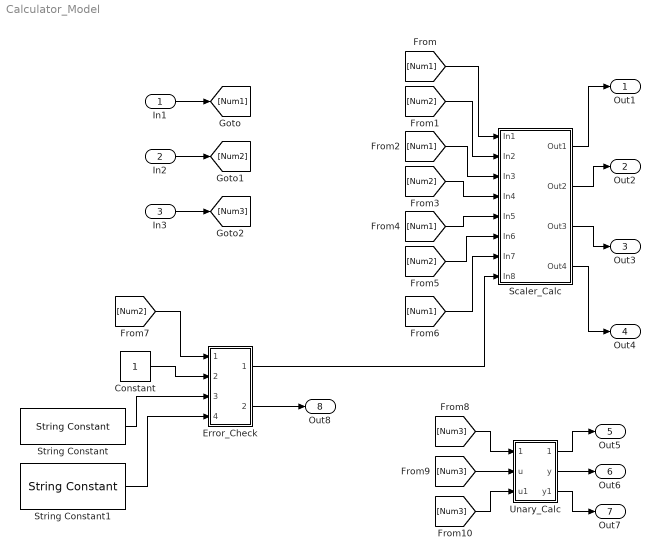
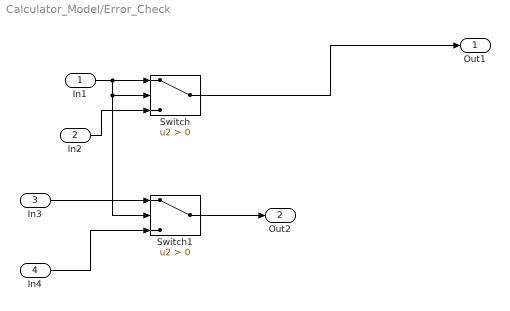
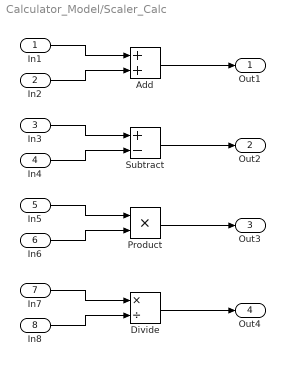
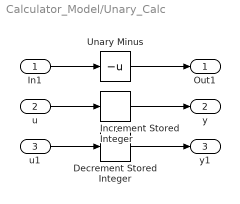
/*
 * File: Calculator_Model.c
 *
 * Code generated for Simulink model 'Calculator_Model'.
 *
 * Model version                  : 1.5
 * Simulink Coder version         : 9.5 (R2021a) 14-Nov-2020
 * C/C++ source code generated on : Tue Jan 23 13:40:56 2024
 *
 * Target selection: ert.tlc
 * Embedded hardware selection: Intel->x86-64 (Windows64)
 * Code generation objectives:
 *    1. RAM efficiency
 *    2. Execution efficiency
 * Validation result: Not run
 */

#include "Calculator_Model.h"
#include "Calculator_Model_private.h"

/* Model step function */
void Calculator_Model_step(RT_MODEL_Calculator_Model_T *const Calculator_Model_M,
  real_T Calculator_Model_U_In1, real_T Calculator_Model_U_In2, real_T
  Calculator_Model_U_In3, real_T *Calculator_Model_Y_Add_Out, real_T
  *Calculator_Model_Y_Sub_Out, real_T *Calculator_Model_Y_Prod_Out, real_T
  *Calculator_Model_Y_Div_Out, real_T *Calculator_Model_Y_UMinus_Out, real_T
  *Calculator_Model_Y_Incr_Out, real_T *Calculator_Model_Y_Decr_Out, char_T
  Calculator_Model_Y_Error_Out[256])
{
  real_T tmp;

  /* Outputs for Atomic SubSystem: '<Root>/Error_Check' */
  /* Switch: '<S1>/Switch1' incorporates:
   *  Inport: '<Root>/In2'
   *  Outport: '<Root>/Out8'
   */
  if (Calculator_Model_U_In2 > 0.0) {
    strncpy(&Calculator_Model_Y_Error_Out[0],
            &Calculator_Model_ConstB.StringConstant[0], 255U);
    Calculator_Model_Y_Error_Out[255] = '\x00';
  } else {
    strncpy(&Calculator_Model_Y_Error_Out[0],
            &Calculator_Model_ConstB.StringConstant1[0], 255U);
    Calculator_Model_Y_Error_Out[255] = '\x00';
  }

  /* End of Switch: '<S1>/Switch1' */
  /* End of Outputs for SubSystem: '<Root>/Error_Check' */

  /* Outputs for Atomic SubSystem: '<Root>/Scaler_Calc' */
  /* Outport: '<Root>/Out1' incorporates:
   *  Inport: '<Root>/In1'
   *  Inport: '<Root>/In2'
   *  Sum: '<S2>/Add'
   */
  *Calculator_Model_Y_Add_Out = Calculator_Model_U_In1 + Calculator_Model_U_In2;

  /* Outport: '<Root>/Out2' incorporates:
   *  Inport: '<Root>/In1'
   *  Inport: '<Root>/In2'
   *  Sum: '<S2>/Subtract'
   */
  *Calculator_Model_Y_Sub_Out = Calculator_Model_U_In1 - Calculator_Model_U_In2;

  /* Outport: '<Root>/Out3' incorporates:
   *  Inport: '<Root>/In1'
   *  Inport: '<Root>/In2'
   *  Product: '<S2>/Product'
   */
  *Calculator_Model_Y_Prod_Out = Calculator_Model_U_In1 * Calculator_Model_U_In2;

  /* End of Outputs for SubSystem: '<Root>/Scaler_Calc' */

  /* Outputs for Atomic SubSystem: '<Root>/Error_Check' */
  /* Switch: '<S1>/Switch' incorporates:
   *  Constant: '<Root>/Constant'
   *  Inport: '<Root>/In2'
   */
  if (Calculator_Model_U_In2 > 0.0) {
    tmp = Calculator_Model_U_In2;
  } else {
    tmp = 1.0;
  }

  /* End of Switch: '<S1>/Switch' */
  /* End of Outputs for SubSystem: '<Root>/Error_Check' */

  /* Outputs for Atomic SubSystem: '<Root>/Scaler_Calc' */
  /* Outport: '<Root>/Out4' incorporates:
   *  Inport: '<Root>/In1'
   *  Product: '<S2>/Divide'
   */
  *Calculator_Model_Y_Div_Out = Calculator_Model_U_In1 / tmp;

  /* End of Outputs for SubSystem: '<Root>/Scaler_Calc' */

  /* Outputs for Atomic SubSystem: '<Root>/Unary_Calc' */
  /* Outport: '<Root>/Out5' incorporates:
   *  Inport: '<Root>/In3'
   *  UnaryMinus: '<S3>/Unary Minus'
   */
  *Calculator_Model_Y_UMinus_Out = -Calculator_Model_U_In3;

  /* Outport: '<Root>/Out6' incorporates:
   *  Constant: '<S5>/FixPt Constant'
   *  Inport: '<Root>/In3'
   *  Sum: '<S5>/FixPt Sum1'
   */
  *Calculator_Model_Y_Incr_Out = Calculator_Model_U_In3 + 1.0;

  /* Outport: '<Root>/Out7' incorporates:
   *  Constant: '<S4>/FixPt Constant'
   *  Inport: '<Root>/In3'
   *  Sum: '<S4>/FixPt Sum1'
   */
  *Calculator_Model_Y_Decr_Out = Calculator_Model_U_In3 - 1.0;

  /* End of Outputs for SubSystem: '<Root>/Unary_Calc' */
  UNUSED_PARAMETER(Calculator_Model_M);
}
